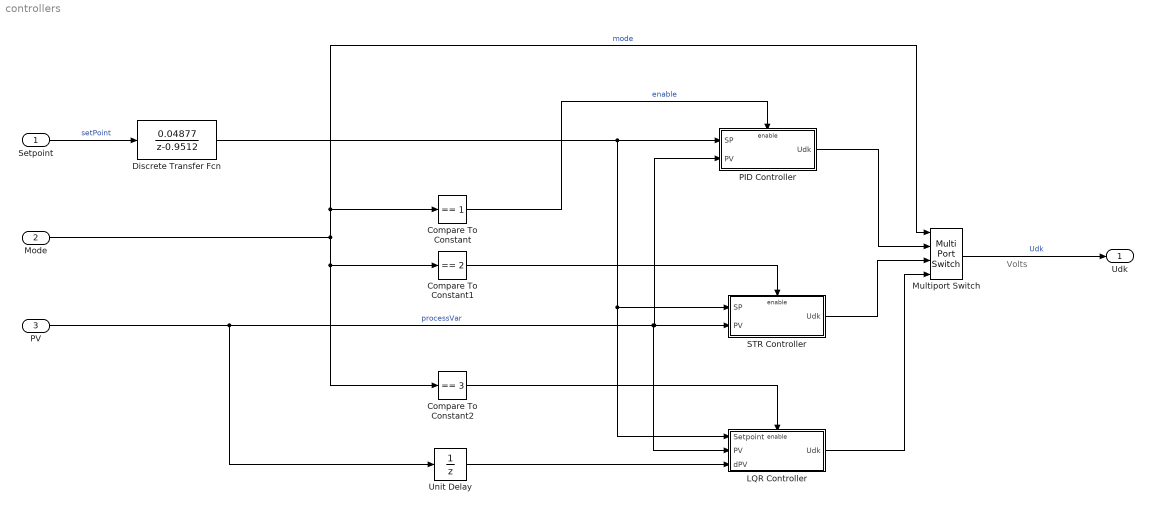
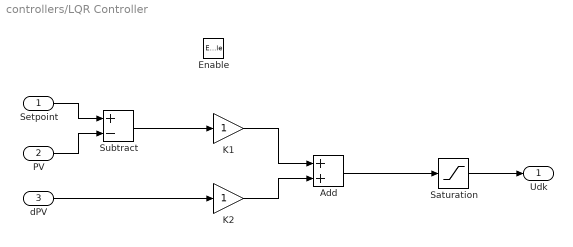
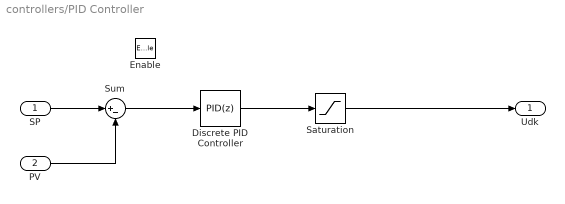
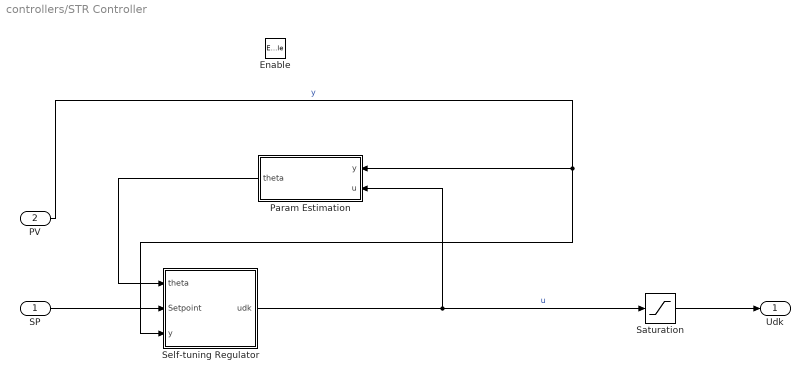
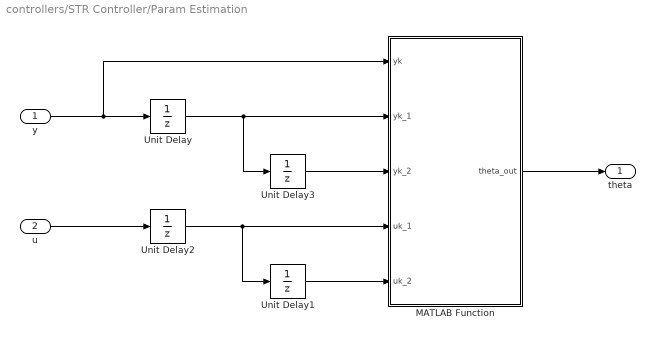
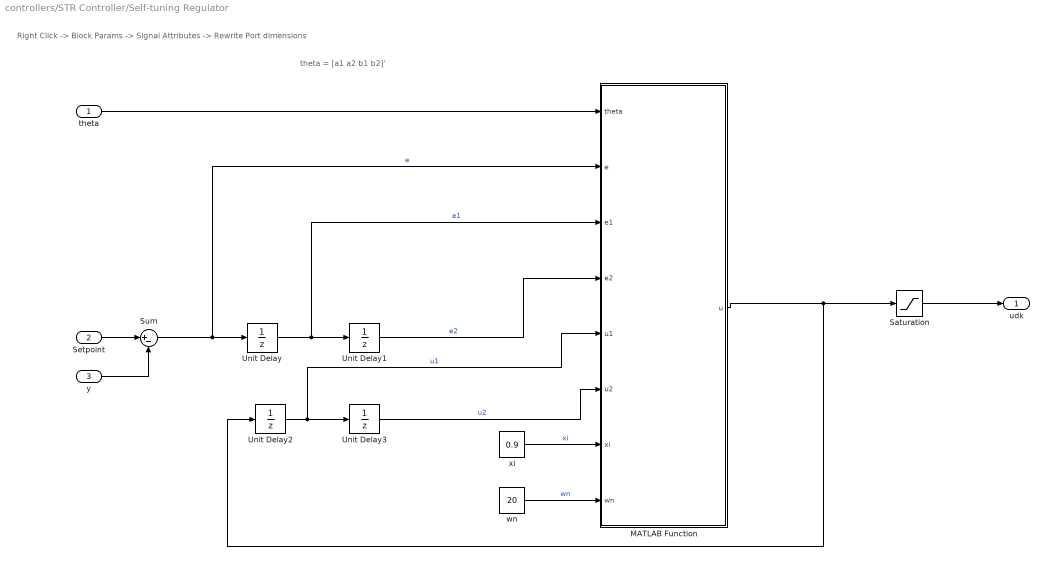
== matlab function STR Controller/Self-tuning Regulator
 /MATLAB Function ==
function u = STR(theta,e,e1,e2,u1,u2,xi,wn)
T0 = 0.005;
%xi = 0.98
%wn = 20;
% Gan lai thong so de thuan tien viec tinh toan
a1 = theta(1);
a2 = theta(2);
b1 = theta(3);
b2 = theta(4);
% Tinh thong so bo dieu khien
if(xi<1)
d1 = -2*exp(-xi*wn*T0)*cos(wn*T0*sqrt(1-xi^2)); % xi<1
else
d1 = -2*exp(-xi*wn*T0)*cosh(wn*T0*sqrt(xi^2-1)); % xi>1
end
d2 = exp(-2*xi*wn*T0);
r1 = (b1+b2)*(a1*b1*b2-a2*b1*b1-b2*b2);
s1 = a2*((b1+b2)*(a1*b2-a2*b1)+b2*(b1*d2-b2*d1-b2));
q2 = s1/r1;
gamma = q2*b2/a2;
q1 = a2/b2-q2*(b1/b2-a1/a2+1);
q0 = (d1+1-a1-gamma)/b1;
% Luat dieu khien
u = q0*e + q1*e1 + q2*e2 + (1-gamma)*u1+ gamma*u2;

== matlab function STR Controller/Param Estimation/MATLAB Function ==
function theta_out = fcn(yk,yk_1,yk_2,uk_1,uk_2)
persistent theta P

if (isempty(theta))
    theta = rand(4,1);
    P = 10000*eye(4);
end

lambda = 0.995;

phi = [-yk_1;-yk_2;uk_1;uk_2];

Lk = P*phi/(lambda + phi'*P*phi);
P = 1/lambda*(P-Lk*phi'*P);
ek = yk - phi'*theta;
theta = theta + Lk*ek;

theta_out = theta;
end

/*
 * File: controllers.c
 *
 * Code generated for Simulink model 'controllers'.
 *
 * Model version                  : 1.45
 * Simulink Coder version         : 9.1 (R2019a) 23-Nov-2018
 * C/C++ source code generated on : Sun Jul  3 11:04:56 2022
 *
 * Target selection: ert.tlc
 * Embedded hardware selection: 32-bit Generic
 * Code generation objectives: Unspecified
 * Validation result: Not run
 */

#include "controllers.h"
#include "controllers_private.h"

/* Exported block signals */
real_T setPoint;                       /* '<Root>/Setpoint' */
real_T mode;                           /* '<Root>/Mode' */
real_T processVar;                     /* '<Root>/PV' */
real_T Udk;                            /* '<Root>/Multiport Switch' */
real_T xi;                             /* '<S53>/xi' */
real_T wn;                             /* '<S53>/wn' */

/* Block signals (default storage) */
BlockIO_controllers controllers_B;

/* Block states (default storage) */
D_Work_controllers controllers_DWork;

/* Real-time model */
RT_MODEL_controllers controllers_M_;
RT_MODEL_controllers *const controllers_M = &controllers_M_;

/* Forward declaration for local functions */
static real_T controllers_eml_rand_mt19937ar(uint32_T state[625]);
static void controllers_rand(real_T r[4]);

/* Function for MATLAB Function: '<S52>/MATLAB Function' */
static real_T controllers_eml_rand_mt19937ar(uint32_T state[625])
{
  real_T r;
  uint32_T u[2];
  uint32_T mti;
  uint32_T y;
  int32_T kk;
  int32_T k;
  boolean_T b_isvalid;
  int32_T exitg1;
  boolean_T exitg2;

  /* ========================= COPYRIGHT NOTICE ============================ */
  /*  This is a uniform (0,1) pseudorandom number generator based on:        */
  /*                                                                         */
  /*  A C-program for MT19937, with initialization improved 2002/1/26.       */
  /*  Coded by Takuji Nishimura and Makoto Matsumoto.                        */
  /*                                                                         */
  /*  Copyright (C) 1997 - 2002, Makoto Matsumoto and Takuji Nishimura,      */
  /*  All rights reserved.                                                   */
  /*                                                                         */
  /*  Redistribution and use in source and binary forms, with or without     */
  /*  modification, are permitted provided that the following conditions     */
  /*  are met:                                                               */
  /*                                                                         */
  /*    1. Redistributions of source code must retain the above copyright    */
  /*       notice, this list of conditions and the following disclaimer.     */
  /*                                                                         */
  /*    2. Redistributions in binary form must reproduce the above copyright */
  /*       notice, this list of conditions and the following disclaimer      */
  /*       in the documentation and/or other materials provided with the     */
  /*       distribution.                                                     */
  /*                                                                         */
  /*    3. The names of its contributors may not be used to endorse or       */
  /*       promote products derived from this software without specific      */
  /*       prior written permission.                                         */
  /*                                                                         */
  /*  THIS SOFTWARE IS PROVIDED BY THE COPYRIGHT HOLDERS AND CONTRIBUTORS    */
  /*  "AS IS" AND ANY EXPRESS OR IMPLIED WARRANTIES, INCLUDING, BUT NOT      */
  /*  LIMITED TO, THE IMPLIED WARRANTIES OF MERCHANTABILITY AND FITNESS FOR  */
  /*  A PARTICULAR PURPOSE ARE DISCLAIMED.  IN NO EVENT SHALL THE COPYRIGHT  */
  /*  OWNER OR CONTRIBUTORS BE LIABLE FOR ANY DIRECT, INDIRECT, INCIDENTAL,  */
  /*  SPECIAL, EXEMPLARY, OR CONSEQUENTIAL DAMAGES (INCLUDING, BUT NOT       */
  /*  LIMITED TO, PROCUREMENT OF SUBSTITUTE GOODS OR SERVICES; LOSS OF USE,  */
  /*  DATA, OR PROFITS; OR BUSINESS INTERRUPTION) HOWEVER CAUSED AND ON ANY  */
  /*  THEORY OF LIABILITY, WHETHER IN CONTRACT, STRICT LIABILITY, OR TORT    */
  /*  (INCLUDING  NEGLIGENCE OR OTHERWISE) ARISING IN ANY WAY OUT OF THE USE */
  /*  OF THIS  SOFTWARE, EVEN IF ADVISED OF THE POSSIBILITY OF SUCH DAMAGE.  */
  /*                                                                         */
  /* =============================   END   ================================= */
  do {
    exitg1 = 0;
    for (k = 0; k < 2; k++) {
      mti = state[624] + 1U;
      if (mti >= 625U) {
        for (kk = 0; kk < 227; kk++) {
          y = (state[1 + kk] & 2147483647U) | (state[kk] & 2147483648U);
          if ((y & 1U) == 0U) {
            y >>= 1U;
          } else {
            y = y >> 1U ^ 2567483615U;
          }

          state[kk] = state[kk + 397] ^ y;
        }

        for (kk = 0; kk < 396; kk++) {
          y = (state[kk + 227] & 2147483648U) | (state[228 + kk] & 2147483647U);
          if ((y & 1U) == 0U) {
            y >>= 1U;
          } else {
            y = y >> 1U ^ 2567483615U;
          }

          state[kk + 227] = state[kk] ^ y;
        }

        y = (state[623] & 2147483648U) | (state[0] & 2147483647U);
        if ((y & 1U) == 0U) {
          y >>= 1U;
        } else {
          y = y >> 1U ^ 2567483615U;
        }

        state[623] = state[396] ^ y;
        mti = 1U;
      }

      y = state[(int32_T)mti - 1];
      state[624] = mti;
      y ^= y >> 11U;
      y ^= y << 7U & 2636928640U;
      y ^= y << 15U & 4022730752U;
      u[k] = y >> 18U ^ y;
    }

    r = ((real_T)(u[0] >> 5U) * 6.7108864E+7 + (real_T)(u[1] >> 6U)) *
      1.1102230246251565E-16;
    if (r == 0.0) {
      if ((state[624] >= 1U) && (state[624] < 625U)) {
        b_isvalid = false;
        k = 1;
        exitg2 = false;
        while ((!exitg2) && (k < 625)) {
          if (state[k - 1] == 0U) {
            k++;
          } else {
            b_isvalid = true;
            exitg2 = true;
          }
        }
      } else {
        b_isvalid = false;
      }

      if (!b_isvalid) {
        mti = 5489U;
        state[0] = 5489U;
        for (k = 0; k < 623; k++) {
          mti = ((mti >> 30U ^ mti) * 1812433253U + k) + 1U;
          state[k + 1] = mti;
        }

        state[624] = 624U;
      }
    } else {
      exitg1 = 1;
    }
  } while (exitg1 == 0);

  return r;
}

/* Function for MATLAB Function: '<S52>/MATLAB Function' */
static void controllers_rand(real_T r[4])
{
  uint32_T b_r;
  int32_T hi;
  uint32_T test2;
  if (controllers_DWork.method == 4U) {
    hi = (int32_T)(controllers_DWork.state / 127773U);
    b_r = (controllers_DWork.state - hi * 127773U) * 16807U;
    test2 = 2836U * hi;
    if (b_r < test2) {
      b_r = ~(test2 - b_r) & 2147483647U;
    } else {
      b_r -= test2;
    }

    controllers_DWork.state = b_r;
    r[0] = (real_T)b_r * 4.6566128752457969E-10;
    hi = (int32_T)(controllers_DWork.state / 127773U);
    b_r = (controllers_DWork.state - hi * 127773U) * 16807U;
    test2 = 2836U * hi;
    if (b_r < test2) {
      b_r = ~(test2 - b_r) & 2147483647U;
    } else {
      b_r -= test2;
    }

    controllers_DWork.state = b_r;
    r[1] = (real_T)b_r * 4.6566128752457969E-10;
    hi = (int32_T)(controllers_DWork.state / 127773U);
    b_r = (controllers_DWork.state - hi * 127773U) * 16807U;
    test2 = 2836U * hi;
    if (b_r < test2) {
      b_r = ~(test2 - b_r) & 2147483647U;
    } else {
      b_r -= test2;
    }

    controllers_DWork.state = b_r;
    r[2] = (real_T)b_r * 4.6566128752457969E-10;
    hi = (int32_T)(controllers_DWork.state / 127773U);
    b_r = (controllers_DWork.state - hi * 127773U) * 16807U;
    test2 = 2836U * hi;
    if (b_r < test2) {
      b_r = ~(test2 - b_r) & 2147483647U;
    } else {
      b_r -= test2;
    }

    controllers_DWork.state = b_r;
    r[3] = (real_T)b_r * 4.6566128752457969E-10;
  } else if (controllers_DWork.method == 5U) {
    b_r = 69069U * controllers_DWork.state_i[0] + 1234567U;
    test2 = controllers_DWork.state_i[1] << 13 ^ controllers_DWork.state_i[1];
    test2 ^= test2 >> 17;
    test2 ^= test2 << 5;
    controllers_DWork.state_i[0] = b_r;
    controllers_DWork.state_i[1] = test2;
    r[0] = (real_T)(b_r + test2) * 2.328306436538696E-10;
    b_r = 69069U * controllers_DWork.state_i[0] + 1234567U;
    test2 = controllers_DWork.state_i[1] << 13 ^ controllers_DWork.state_i[1];
    test2 ^= test2 >> 17;
    test2 ^= test2 << 5;
    controllers_DWork.state_i[0] = b_r;
    controllers_DWork.state_i[1] = test2;
    r[1] = (real_T)(b_r + test2) * 2.328306436538696E-10;
    b_r = 69069U * controllers_DWork.state_i[0] + 1234567U;
    test2 = controllers_DWork.state_i[1] << 13 ^ controllers_DWork.state_i[1];
    test2 ^= test2 >> 17;
    test2 ^= test2 << 5;
    controllers_DWork.state_i[0] = b_r;
    controllers_DWork.state_i[1] = test2;
    r[2] = (real_T)(b_r + test2) * 2.328306436538696E-10;
    b_r = 69069U * controllers_DWork.state_i[0] + 1234567U;
    test2 = controllers_DWork.state_i[1] << 13 ^ controllers_DWork.state_i[1];
    test2 ^= test2 >> 17;
    test2 ^= test2 << 5;
    controllers_DWork.state_i[0] = b_r;
    controllers_DWork.state_i[1] = test2;
    r[3] = (real_T)(b_r + test2) * 2.328306436538696E-10;
  } else {
    if (!controllers_DWork.state_not_empty) {
      memset(&controllers_DWork.state_b[0], 0, 625U * sizeof(uint32_T));
      b_r = 5489U;
      controllers_DWork.state_b[0] = 5489U;
      for (hi = 0; hi < 623; hi++) {
        b_r = ((b_r >> 30U ^ b_r) * 1812433253U + hi) + 1U;
        controllers_DWork.state_b[hi + 1] = b_r;
      }

      controllers_DWork.state_b[624] = 624U;
      controllers_DWork.state_not_empty = true;
    }

    r[0] = controllers_eml_rand_mt19937ar(controllers_DWork.state_b);
    r[1] = controllers_eml_rand_mt19937ar(controllers_DWork.state_b);
    r[2] = controllers_eml_rand_mt19937ar(controllers_DWork.state_b);
    r[3] = controllers_eml_rand_mt19937ar(controllers_DWork.state_b);
  }
}

/* Model step function */
void controllers_step(void)
{
  real_T phi[4];
  real_T ek;
  static const int16_T b[16] = { 10000, 0, 0, 0, 0, 10000, 0, 0, 0, 0, 10000, 0,
    0, 0, 0, 10000 };

  real_T d1;
  real_T q2;
  real_T b_gamma;
  real_T rtb_DiscreteTransferFcn;
  real_T rtb_Sum;
  real_T rtb_FilterCoefficient;
  real_T rtb_e1;
  real_T rtb_u1;
  real_T Lk[16];
  real_T tmp[16];
  int32_T i;
  int32_T phi_tmp;
  int32_T tmp_0;
  int32_T tmp_1;

  /* DiscreteTransferFcn: '<Root>/Discrete Transfer Fcn' */
  rtb_DiscreteTransferFcn = controllers_P.DiscreteTransferFcn_NumCoef *
    controllers_DWork.DiscreteTransferFcn_states;

  /* Outputs for Enabled SubSystem: '<Root>/PID Controller' incorporates:
   *  EnablePort: '<S5>/Enable'
   */
  /* RelationalOperator: '<S1>/Compare' incorporates:
   *  Constant: '<S1>/Constant'
   *  Inport: '<Root>/Mode'
   */
  if (mode == controllers_P.CompareToConstant_const) {
    /* Sum: '<S5>/Sum' incorporates:
     *  Inport: '<Root>/PV'
     */
    rtb_Sum = rtb_DiscreteTransferFcn - processVar;

    /* Gain: '<S40>/Filter Coefficient' incorporates:
     *  DiscreteIntegrator: '<S32>/Filter'
     *  Gain: '<S31>/Derivative Gain'
     *  Sum: '<S32>/SumD'
     *  Sum: '<S5>/Sum'
     */
    rtb_FilterCoefficient = (controllers_P.DiscretePIDController_D * rtb_Sum -
      controllers_DWork.Filter_DSTATE) * controllers_P.DiscretePIDController_N;

    /* Sum: '<S46>/Sum' incorporates:
     *  DiscreteIntegrator: '<S37>/Integrator'
     *  Gain: '<S42>/Proportional Gain'
     *  Sum: '<S5>/Sum'
     */
    ek = (controllers_P.DiscretePIDController_P * rtb_Sum +
          controllers_DWork.Integrator_DSTATE) + rtb_FilterCoefficient;

    /* Saturate: '<S5>/Saturation' */
    if (ek > controllers_P.Saturation_UpperSat_c) {
      controllers_B.Saturation_a = controllers_P.Saturation_UpperSat_c;
    } else if (ek < controllers_P.Saturation_LowerSat_l) {
      controllers_B.Saturation_a = controllers_P.Saturation_LowerSat_l;
    } else {
      controllers_B.Saturation_a = ek;
    }

    /* End of Saturate: '<S5>/Saturation' */

    /* Update for DiscreteIntegrator: '<S32>/Filter' */
    controllers_DWork.Filter_DSTATE += controllers_P.Filter_gainval *
      rtb_FilterCoefficient;

    /* Update for DiscreteIntegrator: '<S37>/Integrator' incorporates:
     *  Gain: '<S34>/Integral Gain'
     *  Sum: '<S5>/Sum'
     */
    controllers_DWork.Integrator_DSTATE += controllers_P.DiscretePIDController_I
      * rtb_Sum * controllers_P.Integrator_gainval;
  }

  /* End of RelationalOperator: '<S1>/Compare' */
  /* End of Outputs for SubSystem: '<Root>/PID Controller' */

  /* Outputs for Enabled SubSystem: '<Root>/STR Controller' incorporates:
   *  EnablePort: '<S6>/Enable'
   */
  /* RelationalOperator: '<S2>/Compare' incorporates:
   *  Constant: '<S2>/Constant'
   *  Constant: '<S53>/wn'
   *  Constant: '<S53>/xi'
   *  Inport: '<Root>/Mode'
   */
  if (mode == controllers_P.CompareToConstant1_const) {
    /* UnitDelay: '<S52>/Unit Delay' */
    rtb_Sum = controllers_DWork.UnitDelay_DSTATE_e;

    /* UnitDelay: '<S52>/Unit Delay2' */
    rtb_FilterCoefficient = controllers_DWork.UnitDelay2_DSTATE;

    /* MATLAB Function: '<S52>/MATLAB Function' incorporates:
     *  Inport: '<Root>/PV'
     *  UnitDelay: '<S52>/Unit Delay'
     *  UnitDelay: '<S52>/Unit Delay1'
     *  UnitDelay: '<S52>/Unit Delay2'
     *  UnitDelay: '<S52>/Unit Delay3'
     */
    /* MATLAB Function 'STR Controller/Param Estimation/MATLAB Function': '<S54>:1' */
    /* '<S54>:1:6' */
    if (!controllers_DWork.theta_not_empty) {
      /* '<S54>:1:4' */
      /* '<S54>:1:5' */
      controllers_rand(controllers_DWork.theta);
      controllers_DWork.theta_not_empty = true;

      /* '<S54>:1:6' */
      for (i = 0; i < 16; i++) {
        controllers_DWork.P[i] = b[i];
      }
    }

    /* '<S54>:1:9' */
    /* '<S54>:1:11' */
    phi[0] = -controllers_DWork.UnitDelay_DSTATE_e;
    phi[1] = -controllers_DWork.UnitDelay3_DSTATE;
    phi[2] = controllers_DWork.UnitDelay2_DSTATE;
    phi[3] = controllers_DWork.UnitDelay1_DSTATE;

    /* '<S54>:1:13' */
    ek = 0.0;
    for (i = 0; i < 4; i++) {
      phi_tmp = i << 2;
      rtb_e1 = controllers_DWork.P[phi_tmp + 3] *
        controllers_DWork.UnitDelay1_DSTATE + (controllers_DWork.P[phi_tmp + 2] *
        controllers_DWork.UnitDelay2_DSTATE + (controllers_DWork.P[phi_tmp + 1] *
        -controllers_DWork.UnitDelay3_DSTATE + controllers_DWork.P[phi_tmp] *
        -controllers_DWork.UnitDelay_DSTATE_e));
      ek += rtb_e1 * phi[i];
    }

    /* '<S54>:1:14' */
    for (i = 0; i < 4; i++) {
      rtb_e1 = (((controllers_DWork.P[i + 4] *
                  -controllers_DWork.UnitDelay3_DSTATE + controllers_DWork.P[i] *
                  -controllers_DWork.UnitDelay_DSTATE_e) + controllers_DWork.P[i
                 + 8] * controllers_DWork.UnitDelay2_DSTATE) +
                controllers_DWork.P[i + 12] *
                controllers_DWork.UnitDelay1_DSTATE) / (0.995 + ek);
      Lk[i] = rtb_e1 * -controllers_DWork.UnitDelay_DSTATE_e;
      Lk[i + 4] = rtb_e1 * -controllers_DWork.UnitDelay3_DSTATE;
      Lk[i + 8] = rtb_e1 * controllers_DWork.UnitDelay2_DSTATE;
      Lk[i + 12] = rtb_e1 * controllers_DWork.UnitDelay1_DSTATE;
      for (phi_tmp = 0; phi_tmp < 4; phi_tmp++) {
        tmp_0 = phi_tmp << 2;
        tmp_1 = tmp_0 + i;
        tmp[tmp_1] = controllers_DWork.P[tmp_1] - (((controllers_DWork.P[tmp_0 +
          1] * Lk[i + 4] + controllers_DWork.P[tmp_0] * Lk[i]) +
          controllers_DWork.P[tmp_0 + 2] * Lk[i + 8]) +
          controllers_DWork.P[tmp_0 + 3] * Lk[i + 12]);
      }

      phi[i] = rtb_e1;
    }

    for (i = 0; i < 16; i++) {
      controllers_DWork.P[i] = 1.0050251256281406 * tmp[i];
    }

    /* '<S54>:1:15' */
    ek = processVar - (((-controllers_DWork.UnitDelay_DSTATE_e *
                         controllers_DWork.theta[0] +
                         -controllers_DWork.UnitDelay3_DSTATE *
                         controllers_DWork.theta[1]) +
                        controllers_DWork.UnitDelay2_DSTATE *
                        controllers_DWork.theta[2]) +
                       controllers_DWork.UnitDelay1_DSTATE *
                       controllers_DWork.theta[3]);

    /* '<S54>:1:16' */
    controllers_DWork.theta[0] += phi[0] * ek;
    controllers_DWork.theta[1] += phi[1] * ek;
    controllers_DWork.theta[2] += phi[2] * ek;
    controllers_DWork.theta[3] += phi[3] * ek;

    /* Sum: '<S53>/Sum' incorporates:
     *  Inport: '<Root>/PV'
     */
    /* '<S54>:1:18' */
    ek = rtb_DiscreteTransferFcn - processVar;

    /* UnitDelay: '<S53>/Unit Delay' */
    rtb_e1 = controllers_DWork.UnitDelay_DSTATE_j;

    /* UnitDelay: '<S53>/Unit Delay2' */
    rtb_u1 = controllers_DWork.UnitDelay2_DSTATE_f;
    xi = controllers_P.xi_Value;
    wn = controllers_P.wn_Value;

    /* MATLAB Function: '<S53>/MATLAB Function' incorporates:
     *  Constant: '<S53>/wn'
     *  Constant: '<S53>/xi'
     *  MATLAB Function: '<S52>/MATLAB Function'
     *  Sum: '<S53>/Sum'
     *  UnitDelay: '<S53>/Unit Delay'
     *  UnitDelay: '<S53>/Unit Delay1'
     *  UnitDelay: '<S53>/Unit Delay2'
     *  UnitDelay: '<S53>/Unit Delay3'
     */
    /* MATLAB Function 'STR Controller/Self-tuning Regulator  /MATLAB Function': '<S55>:1' */
    /* '<S55>:1:2' */
    /* '<S55>:1:6' */
    /* '<S55>:1:7' */
    /* '<S55>:1:8' */
    /* '<S55>:1:9' */
    if (xi < 1.0) {
      /* '<S55>:1:11' */
      /* '<S55>:1:12' */
      d1 = exp(-xi * wn * 0.005) * -2.0 * cos(sqrt(1.0 - xi * xi) * (wn * 0.005));
    } else {
      /* '<S55>:1:14' */
      d1 = exp(-xi * wn * 0.005) * -2.0 * cosh(sqrt(xi * xi - 1.0) * (wn * 0.005));
    }

    /* '<S55>:1:16' */
    /* '<S55>:1:17' */
    /* '<S55>:1:18' */
    /* '<S55>:1:19' */
    q2 = controllers_DWork.theta[1] * controllers_DWork.theta[2];
    b_gamma = controllers_DWork.theta[2] + controllers_DWork.theta[3];
    q2 = (((exp(-2.0 * xi * wn * 0.005) * controllers_DWork.theta[2] -
            controllers_DWork.theta[3] * d1) - controllers_DWork.theta[3]) *
          controllers_DWork.theta[3] + (controllers_DWork.theta[0] *
           controllers_DWork.theta[3] - q2) * b_gamma) *
      controllers_DWork.theta[1] / (((controllers_DWork.theta[0] *
      controllers_DWork.theta[2] * controllers_DWork.theta[3] - q2 *
      controllers_DWork.theta[2]) - controllers_DWork.theta[3] *
      controllers_DWork.theta[3]) * b_gamma);

    /* '<S55>:1:20' */
    b_gamma = q2 * controllers_DWork.theta[3] / controllers_DWork.theta[1];

    /* '<S55>:1:21' */
    /* '<S55>:1:22' */
    /* '<S55>:1:24' */
    d1 = ((((controllers_DWork.theta[1] / controllers_DWork.theta[3] -
             ((controllers_DWork.theta[2] / controllers_DWork.theta[3] -
               controllers_DWork.theta[0] / controllers_DWork.theta[1]) + 1.0) *
             q2) * controllers_DWork.UnitDelay_DSTATE_j + (((d1 + 1.0) -
              controllers_DWork.theta[0]) - b_gamma) / controllers_DWork.theta[2]
            * ek) + q2 * controllers_DWork.UnitDelay1_DSTATE_c) + (1.0 - b_gamma)
          * controllers_DWork.UnitDelay2_DSTATE_f) + b_gamma *
      controllers_DWork.UnitDelay3_DSTATE_o;

    /* End of MATLAB Function: '<S53>/MATLAB Function' */

    /* Saturate: '<S53>/Saturation' */
    if (d1 > controllers_P.Saturation_UpperSat_i) {
      q2 = controllers_P.Saturation_UpperSat_i;
    } else if (d1 < controllers_P.Saturation_LowerSat_a) {
      q2 = controllers_P.Saturation_LowerSat_a;
    } else {
      q2 = d1;
    }

    /* End of Saturate: '<S53>/Saturation' */

    /* Saturate: '<S6>/Saturation' */
    if (q2 > controllers_P.Saturation_UpperSat_d) {
      controllers_B.Saturation = controllers_P.Saturation_UpperSat_d;
    } else if (q2 < controllers_P.Saturation_LowerSat_b) {
      controllers_B.Saturation = controllers_P.Saturation_LowerSat_b;
    } else {
      controllers_B.Saturation = q2;
    }

    /* End of Saturate: '<S6>/Saturation' */

    /* Update for UnitDelay: '<S52>/Unit Delay' incorporates:
     *  Inport: '<Root>/PV'
     */
    controllers_DWork.UnitDelay_DSTATE_e = processVar;

    /* Update for UnitDelay: '<S52>/Unit Delay3' */
    controllers_DWork.UnitDelay3_DSTATE = rtb_Sum;

    /* Update for UnitDelay: '<S52>/Unit Delay2' */
    controllers_DWork.UnitDelay2_DSTATE = q2;

    /* Update for UnitDelay: '<S52>/Unit Delay1' */
    controllers_DWork.UnitDelay1_DSTATE = rtb_FilterCoefficient;

    /* Update for UnitDelay: '<S53>/Unit Delay' incorporates:
     *  Sum: '<S53>/Sum'
     */
    controllers_DWork.UnitDelay_DSTATE_j = ek;

    /* Update for UnitDelay: '<S53>/Unit Delay1' */
    controllers_DWork.UnitDelay1_DSTATE_c = rtb_e1;

    /* Update for UnitDelay: '<S53>/Unit Delay2' */
    controllers_DWork.UnitDelay2_DSTATE_f = d1;

    /* Update for UnitDelay: '<S53>/Unit Delay3' */
    controllers_DWork.UnitDelay3_DSTATE_o = rtb_u1;
  }

  /* End of RelationalOperator: '<S2>/Compare' */
  /* End of Outputs for SubSystem: '<Root>/STR Controller' */

  /* Outputs for Enabled SubSystem: '<Root>/LQR Controller' incorporates:
   *  EnablePort: '<S4>/Enable'
   */
  /* RelationalOperator: '<S3>/Compare' incorporates:
   *  Constant: '<S3>/Constant'
   *  Inport: '<Root>/Mode'
   */
  if (mode == controllers_P.CompareToConstant2_const) {
    /* Sum: '<S4>/Add' incorporates:
     *  Gain: '<S4>/K1'
     *  Gain: '<S4>/K2'
     *  Inport: '<Root>/PV'
     *  Sum: '<S4>/Subtract'
     *  UnitDelay: '<Root>/Unit Delay'
     */
    ek = (rtb_DiscreteTransferFcn - processVar) * controllers_P.K1_Gain +
      controllers_P.K2_Gain * controllers_DWork.UnitDelay_DSTATE;

    /* Saturate: '<S4>/Saturation' */
    if (ek > controllers_P.Saturation_UpperSat) {
      controllers_B.Saturation_e = controllers_P.Saturation_UpperSat;
    } else if (ek < controllers_P.Saturation_LowerSat) {
      controllers_B.Saturation_e = controllers_P.Saturation_LowerSat;
    } else {
      controllers_B.Saturation_e = ek;
    }

    /* End of Saturate: '<S4>/Saturation' */
  }

  /* End of RelationalOperator: '<S3>/Compare' */
  /* End of Outputs for SubSystem: '<Root>/LQR Controller' */

  /* MultiPortSwitch: '<Root>/Multiport Switch' incorporates:
   *  Inport: '<Root>/Mode'
   */
  switch ((int32_T)mode) {
   case 1:
    Udk = controllers_B.Saturation_a;
    break;

   case 2:
    Udk = controllers_B.Saturation;
    break;

   default:
    Udk = controllers_B.Saturation_e;
    break;
  }

  /* End of MultiPortSwitch: '<Root>/Multiport Switch' */

  /* Update for DiscreteTransferFcn: '<Root>/Discrete Transfer Fcn' incorporates:
   *  Inport: '<Root>/Setpoint'
   */
  controllers_DWork.DiscreteTransferFcn_states = (setPoint
    - controllers_P.DiscreteTransferFcn_DenCoef[1] *
    controllers_DWork.DiscreteTransferFcn_states) /
    controllers_P.DiscreteTransferFcn_DenCoef[0];

  /* Update for UnitDelay: '<Root>/Unit Delay' incorporates:
   *  Inport: '<Root>/PV'
   */
  controllers_DWork.UnitDelay_DSTATE = processVar;
}
